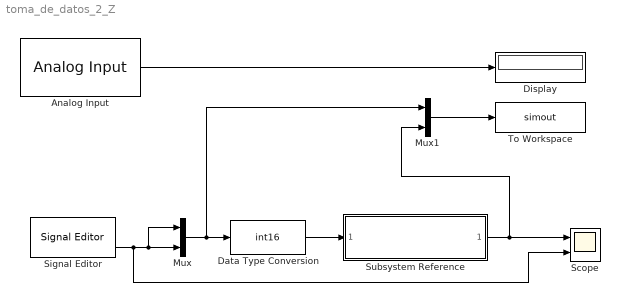
/*
 * Academic License - for use in teaching, academic research, and meeting
 * course requirements at degree granting institutions only.  Not for
 * government, commercial, or other organizational use.
 *
 * File: toma_de_datos_2_Z.c
 *
 * Code generated for Simulink model 'toma_de_datos_2_Z'.
 *
 * Model version                  : 1.7
 * Simulink Coder version         : 23.2 (R2023b) 01-Aug-2023
 * C/C++ source code generated on : Mon Dec 18 00:21:13 2023
 *
 * Target selection: ert.tlc
 * Embedded hardware selection: Atmel->AVR
 * Code generation objectives: Unspecified
 * Validation result: Not run
 */

#include "toma_de_datos_2_Z.h"
#include <math.h>
#include "rt_nonfinite.h"
#include "rtwtypes.h"
#include "toma_de_datos_2_Z_private.h"

/* Block signals (default storage) */
B_toma_de_datos_2_Z_T toma_de_datos_2_Z_B;

/* Block states (default storage) */
DW_toma_de_datos_2_Z_T toma_de_datos_2_Z_DW;

/* Real-time model */
static RT_MODEL_toma_de_datos_2_Z_T toma_de_datos_2_Z_M_;
RT_MODEL_toma_de_datos_2_Z_T *const toma_de_datos_2_Z_M = &toma_de_datos_2_Z_M_;

/* Model step function */
void toma_de_datos_2_Z_step(void)
{
  {
    real_T (*lastU)[2];
    real_T Gain_tmp;
    real_T lastTime_tmp;
    int16_T rtb_DataTypeConversion_idx_0;
    int16_T rtb_DataTypeConversion_idx_1;
    int16_T y;

    /* MATLABSystem: '<S3>/Encoder' */
    if (toma_de_datos_2_Z_DW.obj_p.SampleTime !=
        toma_de_datos_2_Z_P.Encoder_SampleTime) {
      toma_de_datos_2_Z_DW.obj_p.SampleTime =
        toma_de_datos_2_Z_P.Encoder_SampleTime;
    }

    if (toma_de_datos_2_Z_DW.obj_p.TunablePropsChanged) {
      toma_de_datos_2_Z_DW.obj_p.TunablePropsChanged = false;
    }

    /* MATLABSystem: '<S3>/Encoder' */
    MW_EncoderRead(toma_de_datos_2_Z_DW.obj_p.Index,
                   &toma_de_datos_2_Z_B.Encoder);

    /* MATLABSystem: '<S3>/Encoder1' */
    if (toma_de_datos_2_Z_DW.obj.SampleTime !=
        toma_de_datos_2_Z_P.Encoder1_SampleTime) {
      toma_de_datos_2_Z_DW.obj.SampleTime =
        toma_de_datos_2_Z_P.Encoder1_SampleTime;
    }

    if (toma_de_datos_2_Z_DW.obj.TunablePropsChanged) {
      toma_de_datos_2_Z_DW.obj.TunablePropsChanged = false;
    }

    /* MATLABSystem: '<S3>/Encoder1' */
    MW_EncoderRead(toma_de_datos_2_Z_DW.obj.Index, &toma_de_datos_2_Z_B.Encoder1);

    /* Gain: '<S3>/Gain' */
    Gain_tmp = (real_T)toma_de_datos_2_Z_P.Gain_Gain * 1.1368683772161603E-13;

    /* Gain: '<S3>/Gain' incorporates:
     *  SignalConversion generated from: '<S3>/Gain'
     */
    toma_de_datos_2_Z_B.Gain[0] = Gain_tmp * (real_T)toma_de_datos_2_Z_B.Encoder;
    toma_de_datos_2_Z_B.Gain[1] = Gain_tmp * (real_T)
      toma_de_datos_2_Z_B.Encoder1;

    /* Derivative: '<S3>/Derivative' */
    Gain_tmp = toma_de_datos_2_Z_M->Timing.t[0];
    if ((toma_de_datos_2_Z_DW.TimeStampA >= Gain_tmp) &&
        (toma_de_datos_2_Z_DW.TimeStampB >= Gain_tmp)) {
      /* Derivative: '<S3>/Derivative' */
      toma_de_datos_2_Z_B.Derivative[0] = 0.0;
      toma_de_datos_2_Z_B.Derivative[1] = 0.0;
    } else {
      lastTime_tmp = toma_de_datos_2_Z_DW.TimeStampA;
      lastU = &toma_de_datos_2_Z_DW.LastUAtTimeA;
      if (toma_de_datos_2_Z_DW.TimeStampA < toma_de_datos_2_Z_DW.TimeStampB) {
        if (toma_de_datos_2_Z_DW.TimeStampB < Gain_tmp) {
          lastTime_tmp = toma_de_datos_2_Z_DW.TimeStampB;
          lastU = &toma_de_datos_2_Z_DW.LastUAtTimeB;
        }
      } else if (toma_de_datos_2_Z_DW.TimeStampA >= Gain_tmp) {
        lastTime_tmp = toma_de_datos_2_Z_DW.TimeStampB;
        lastU = &toma_de_datos_2_Z_DW.LastUAtTimeB;
      }

      Gain_tmp -= lastTime_tmp;

      /* Derivative: '<S3>/Derivative' */
      toma_de_datos_2_Z_B.Derivative[0] = (toma_de_datos_2_Z_B.Gain[0] - (*lastU)
        [0]) / Gain_tmp;
      toma_de_datos_2_Z_B.Derivative[1] = (toma_de_datos_2_Z_B.Gain[1] - (*lastU)
        [1]) / Gain_tmp;
    }

    /* End of Derivative: '<S3>/Derivative' */

    /* FromWorkspace: '<S1>/From Workspace' */
    {
      real_T *pDataValues = (real_T *)
        toma_de_datos_2_Z_DW.FromWorkspace_PWORK.DataPtr;
      real_T *pTimeValues = (real_T *)
        toma_de_datos_2_Z_DW.FromWorkspace_PWORK.TimePtr;
      int_T currTimeIndex = toma_de_datos_2_Z_DW.FromWorkspace_IWORK.PrevIndex;
      real_T t = toma_de_datos_2_Z_M->Timing.t[0];
      if (t > pTimeValues[13]) {
        toma_de_datos_2_Z_B.Signal2 = 0.0;
      } else {
        /* Get index */
        if (t <= pTimeValues[0]) {
          currTimeIndex = 0;
        } else if (t >= pTimeValues[13]) {
          currTimeIndex = 12;
        } else {
          if (t < pTimeValues[currTimeIndex]) {
            while (t < pTimeValues[currTimeIndex]) {
              currTimeIndex--;
            }
          } else {
            while (t >= pTimeValues[currTimeIndex + 1]) {
              currTimeIndex++;
            }
          }
        }

        toma_de_datos_2_Z_DW.FromWorkspace_IWORK.PrevIndex = currTimeIndex;

        /* Post output */
        {
          real_T t1 = pTimeValues[currTimeIndex];
          real_T t2 = pTimeValues[currTimeIndex + 1];
          if (t1 == t2) {
            if (t < t1) {
              toma_de_datos_2_Z_B.Signal2 = pDataValues[currTimeIndex];
            } else {
              toma_de_datos_2_Z_B.Signal2 = pDataValues[currTimeIndex + 1];
            }
          } else {
            real_T f1 = (t2 - t) / (t2 - t1);
            real_T f2 = 1.0 - f1;
            real_T d1;
            real_T d2;
            int_T TimeIndex = currTimeIndex;
            d1 = pDataValues[TimeIndex];
            d2 = pDataValues[TimeIndex + 1];
            toma_de_datos_2_Z_B.Signal2 = (real_T) rtInterpolate(d1, d2, f1, f2);
            pDataValues += 14;
          }
        }
      }
    }

    /* SignalConversion generated from: '<Root>/To Workspace' */
    toma_de_datos_2_Z_B.TmpSignalConversionAt_asyncqueu[0] =
      toma_de_datos_2_Z_B.Signal2;
    toma_de_datos_2_Z_B.TmpSignalConversionAt_asyncqueu[1] =
      toma_de_datos_2_Z_B.Signal2;
    toma_de_datos_2_Z_B.TmpSignalConversionAt_asyncqueu[2] =
      toma_de_datos_2_Z_B.Derivative[0];
    toma_de_datos_2_Z_B.TmpSignalConversionAt_asyncqueu[3] =
      toma_de_datos_2_Z_B.Derivative[1];

    /* DataTypeConversion: '<Root>/Data Type Conversion' */
    Gain_tmp = floor(toma_de_datos_2_Z_B.Signal2);
    if (rtIsNaN(Gain_tmp) || rtIsInf(Gain_tmp)) {
      lastTime_tmp = 0.0;
      Gain_tmp = 0.0;
    } else {
      lastTime_tmp = fmod(Gain_tmp, 65536.0);
      Gain_tmp = lastTime_tmp;
    }

    rtb_DataTypeConversion_idx_0 = lastTime_tmp < 0.0 ? -(int16_T)(uint16_T)
      -lastTime_tmp : (int16_T)(uint16_T)lastTime_tmp;
    rtb_DataTypeConversion_idx_1 = Gain_tmp < 0.0 ? -(int16_T)(uint16_T)
      -Gain_tmp : (int16_T)(uint16_T)Gain_tmp;

    /* End of DataTypeConversion: '<Root>/Data Type Conversion' */
    /* SignalConversion generated from: '<S3>/Mux' */
    toma_de_datos_2_Z_B.TmpSignalConversionAtTAQSigLogg[0] =
      toma_de_datos_2_Z_B.Encoder;
    toma_de_datos_2_Z_B.TmpSignalConversionAtTAQSigLogg[1] =
      toma_de_datos_2_Z_B.Encoder1;

    /* MATLABSystem: '<S4>/Adelante_der' */
    toma_de_datos_2_Z_DW.obj_k.PWMDriverObj.MW_PWM_HANDLE = MW_PWM_GetHandle
      (12UL);

    /* Saturate: '<S4>/Saturation2' */
    if (rtb_DataTypeConversion_idx_1 > toma_de_datos_2_Z_P.Saturation2_UpperSat)
    {
      y = toma_de_datos_2_Z_P.Saturation2_UpperSat;
    } else if (rtb_DataTypeConversion_idx_1 <
               toma_de_datos_2_Z_P.Saturation2_LowerSat) {
      y = toma_de_datos_2_Z_P.Saturation2_LowerSat;
    } else {
      y = rtb_DataTypeConversion_idx_1;
    }

    /* End of Saturate: '<S4>/Saturation2' */

    /* Start for MATLABSystem: '<S4>/Adelante_der' */
    if (y > 255) {
      y = 255;
    }

    if (y < 0) {
      y = 0;
    }

    /* MATLABSystem: '<S4>/Adelante_der' */
    MW_PWM_SetDutyCycle(toma_de_datos_2_Z_DW.obj_k.PWMDriverObj.MW_PWM_HANDLE,
                        (real_T)y);

    /* MATLABSystem: '<S4>/Adelante_izq' */
    toma_de_datos_2_Z_DW.obj_c.PWMDriverObj.MW_PWM_HANDLE = MW_PWM_GetHandle(9UL);

    /* Saturate: '<S4>/Saturation4' */
    if (rtb_DataTypeConversion_idx_0 > toma_de_datos_2_Z_P.Saturation4_UpperSat)
    {
      y = toma_de_datos_2_Z_P.Saturation4_UpperSat;
    } else if (rtb_DataTypeConversion_idx_0 <
               toma_de_datos_2_Z_P.Saturation4_LowerSat) {
      y = toma_de_datos_2_Z_P.Saturation4_LowerSat;
    } else {
      y = rtb_DataTypeConversion_idx_0;
    }

    /* End of Saturate: '<S4>/Saturation4' */

    /* Abs: '<S4>/Abs2' */
    if (y < 0) {
      y = -y;
    }

    /* End of Abs: '<S4>/Abs2' */

    /* Start for MATLABSystem: '<S4>/Adelante_izq' */
    if (y > 255) {
      y = 255;
    }

    if (y < 0) {
      y = 0;
    }

    /* MATLABSystem: '<S4>/Adelante_izq' */
    MW_PWM_SetDutyCycle(toma_de_datos_2_Z_DW.obj_c.PWMDriverObj.MW_PWM_HANDLE,
                        (real_T)y);

    /* MATLABSystem: '<S4>/Atras_der' */
    toma_de_datos_2_Z_DW.obj_l.PWMDriverObj.MW_PWM_HANDLE = MW_PWM_GetHandle
      (11UL);

    /* Saturate: '<S4>/Saturation3' */
    if (rtb_DataTypeConversion_idx_1 > toma_de_datos_2_Z_P.Saturation3_UpperSat)
    {
      y = toma_de_datos_2_Z_P.Saturation3_UpperSat;
    } else if (rtb_DataTypeConversion_idx_1 <
               toma_de_datos_2_Z_P.Saturation3_LowerSat) {
      y = toma_de_datos_2_Z_P.Saturation3_LowerSat;
    } else {
      y = rtb_DataTypeConversion_idx_1;
    }

    /* End of Saturate: '<S4>/Saturation3' */

    /* Abs: '<S4>/Abs1' */
    if (y < 0) {
      y = -y;
    }

    /* End of Abs: '<S4>/Abs1' */

    /* Start for MATLABSystem: '<S4>/Atras_der' */
    if (y > 255) {
      y = 255;
    }

    if (y < 0) {
      y = 0;
    }

    /* MATLABSystem: '<S4>/Atras_der' */
    MW_PWM_SetDutyCycle(toma_de_datos_2_Z_DW.obj_l.PWMDriverObj.MW_PWM_HANDLE,
                        (real_T)y);

    /* MATLABSystem: '<S4>/Atras_izq' */
    toma_de_datos_2_Z_DW.obj_m.PWMDriverObj.MW_PWM_HANDLE = MW_PWM_GetHandle
      (10UL);

    /* Saturate: '<S4>/Saturation5' */
    if (rtb_DataTypeConversion_idx_0 > toma_de_datos_2_Z_P.Saturation5_UpperSat)
    {
      y = toma_de_datos_2_Z_P.Saturation5_UpperSat;
    } else if (rtb_DataTypeConversion_idx_0 <
               toma_de_datos_2_Z_P.Saturation5_LowerSat) {
      y = toma_de_datos_2_Z_P.Saturation5_LowerSat;
    } else {
      y = rtb_DataTypeConversion_idx_0;
    }

    /* End of Saturate: '<S4>/Saturation5' */

    /* Start for MATLABSystem: '<S4>/Atras_izq' */
    if (y > 255) {
      y = 255;
    }

    if (y < 0) {
      y = 0;
    }

    /* MATLABSystem: '<S4>/Atras_izq' */
    MW_PWM_SetDutyCycle(toma_de_datos_2_Z_DW.obj_m.PWMDriverObj.MW_PWM_HANDLE,
                        (real_T)y);

    /* MATLABSystem: '<S4>/Digital Output' incorporates:
     *  Constant: '<S5>/Constant'
     *  RelationalOperator: '<S5>/Compare'
     */
    writeDigitalPin(8, (uint8_T)(rtb_DataTypeConversion_idx_0 !=
      toma_de_datos_2_Z_P.Constant_Value));

    /* MATLABSystem: '<S4>/Digital Output1' incorporates:
     *  Constant: '<S6>/Constant'
     *  RelationalOperator: '<S6>/Compare'
     */
    writeDigitalPin(13, (uint8_T)(rtb_DataTypeConversion_idx_1 !=
      toma_de_datos_2_Z_P.Constant_Value_h));

    /* MATLABSystem: '<Root>/Analog Input' */
    if (toma_de_datos_2_Z_DW.obj_n.SampleTime !=
        toma_de_datos_2_Z_P.AnalogInput_SampleTime) {
      toma_de_datos_2_Z_DW.obj_n.SampleTime =
        toma_de_datos_2_Z_P.AnalogInput_SampleTime;
    }

    toma_de_datos_2_Z_DW.obj_n.AnalogInDriverObj.MW_ANALOGIN_HANDLE =
      MW_AnalogIn_GetHandle(59UL);

    /* MATLABSystem: '<Root>/Analog Input' */
    MW_AnalogInSingle_ReadResult
      (toma_de_datos_2_Z_DW.obj_n.AnalogInDriverObj.MW_ANALOGIN_HANDLE,
       &toma_de_datos_2_Z_B.AnalogInput, MW_ANALOGIN_UINT16);
  }

  {
    real_T (*lastU)[2];

    /* Update for Derivative: '<S3>/Derivative' */
    if (toma_de_datos_2_Z_DW.TimeStampA == (rtInf)) {
      toma_de_datos_2_Z_DW.TimeStampA = toma_de_datos_2_Z_M->Timing.t[0];
      lastU = &toma_de_datos_2_Z_DW.LastUAtTimeA;
    } else if (toma_de_datos_2_Z_DW.TimeStampB == (rtInf)) {
      toma_de_datos_2_Z_DW.TimeStampB = toma_de_datos_2_Z_M->Timing.t[0];
      lastU = &toma_de_datos_2_Z_DW.LastUAtTimeB;
    } else if (toma_de_datos_2_Z_DW.TimeStampA < toma_de_datos_2_Z_DW.TimeStampB)
    {
      toma_de_datos_2_Z_DW.TimeStampA = toma_de_datos_2_Z_M->Timing.t[0];
      lastU = &toma_de_datos_2_Z_DW.LastUAtTimeA;
    } else {
      toma_de_datos_2_Z_DW.TimeStampB = toma_de_datos_2_Z_M->Timing.t[0];
      lastU = &toma_de_datos_2_Z_DW.LastUAtTimeB;
    }

    (*lastU)[0] = toma_de_datos_2_Z_B.Gain[0];
    (*lastU)[1] = toma_de_datos_2_Z_B.Gain[1];

    /* End of Update for Derivative: '<S3>/Derivative' */
  }

  {                                    /* Sample time: [0.0s, 0.0s] */
    extmodeErrorCode_T errorCode = EXTMODE_SUCCESS;
    extmodeSimulationTime_T currentTime = (extmodeSimulationTime_T)
      ((toma_de_datos_2_Z_M->Timing.clockTick0 * 1) + 0)
      ;

    /* Trigger External Mode event */
    errorCode = extmodeEvent(0,currentTime);
    if (errorCode != EXTMODE_SUCCESS) {
      /* Code to handle External Mode event errors
         may be added here */
    }
  }

  {                                    /* Sample time: [0.01s, 0.0s] */
    extmodeErrorCode_T errorCode = EXTMODE_SUCCESS;
    extmodeSimulationTime_T currentTime = (extmodeSimulationTime_T)
      ((toma_de_datos_2_Z_M->Timing.clockTick1 * 1) + 0)
      ;

    /* Trigger External Mode event */
    errorCode = extmodeEvent(1,currentTime);
    if (errorCode != EXTMODE_SUCCESS) {
      /* Code to handle External Mode event errors
         may be added here */
    }
  }

  /* Update absolute time for base rate */
  /* The "clockTick0" counts the number of times the code of this task has
   * been executed. The absolute time is the multiplication of "clockTick0"
   * and "Timing.stepSize0". Size of "clockTick0" ensures timer will not
   * overflow during the application lifespan selected.
   */
  toma_de_datos_2_Z_M->Timing.t[0] =
    ((time_T)(++toma_de_datos_2_Z_M->Timing.clockTick0)) *
    toma_de_datos_2_Z_M->Timing.stepSize0;

  {
    /* Update absolute timer for sample time: [0.01s, 0.0s] */
    /* The "clockTick1" counts the number of times the code of this task has
     * been executed. The resolution of this integer timer is 0.01, which is the step size
     * of the task. Size of "clockTick1" ensures timer will not overflow during the
     * application lifespan selected.
     */
    toma_de_datos_2_Z_M->Timing.clockTick1++;
  }
}
